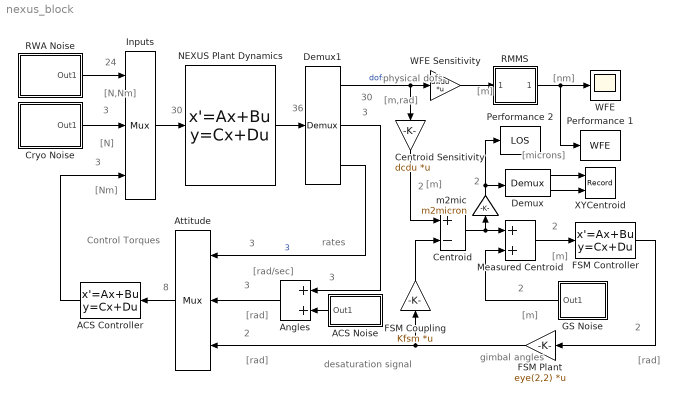
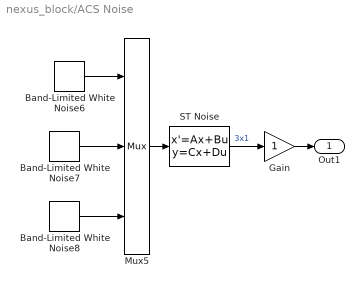
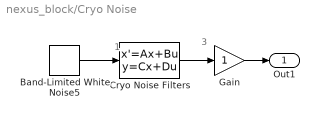
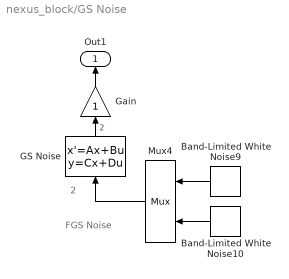
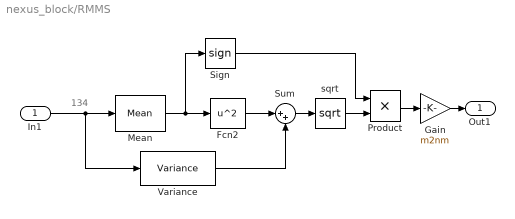
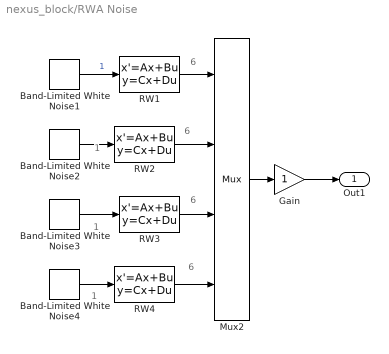
/*
 * nexus_block.cpp
 *
 * Academic License - for use in teaching, academic research, and meeting
 * course requirements at degree granting institutions only.  Not for
 * government, commercial, or other organizational use.
 *
 * Code generation for model "nexus_block".
 *
 * Model version              : 1.265
 * Simulink Coder version : 24.2 (R2024b) 21-Jun-2024
 * C++ source code generated on : Sun Mar  2 17:48:36 2025
 *
 * Target selection: grt.tlc
 * Note: GRT includes extra infrastructure and instrumentation for prototyping
 * Embedded hardware selection: 32-bit Generic
 * Emulation hardware selection:
 *    Differs from embedded hardware (MATLAB Host)
 * Code generation objectives: Unspecified
 * Validation result: Not run
 */

#include "nexus_block.h"
#include "rtwtypes.h"
#include <cmath>
#include "nexus_block_private.h"
#include "cmath"

/*
 * This function updates continuous states using the ODE4 fixed-step
 * solver algorithm
 */
void nexus_block::rt_ertODEUpdateContinuousStates(RTWSolverInfo *si )
{
  time_T t { rtsiGetT(si) };

  time_T tnew { rtsiGetSolverStopTime(si) };

  time_T h { rtsiGetStepSize(si) };

  real_T *x { rtsiGetContStates(si) };

  ODE4_IntgData *id { static_cast<ODE4_IntgData *>(rtsiGetSolverData(si)) };

  real_T *y { id->y };

  real_T *f0 { id->f[0] };

  real_T *f1 { id->f[1] };

  real_T *f2 { id->f[2] };

  real_T *f3 { id->f[3] };

  real_T temp;
  int_T i;
  int_T nXc { 240 };

  rtsiSetSimTimeStep(si,MINOR_TIME_STEP);

  /* Save the state values at time t in y, we'll use x as ynew. */
  (void) std::memcpy(y, x,
                     static_cast<uint_T>(nXc)*sizeof(real_T));

  /* Assumes that rtsiSetT and ModelOutputs are up-to-date */
  /* f0 = f(t,y) */
  rtsiSetdX(si, f0);
  nexus_block_derivatives();

  /* f1 = f(t + (h/2), y + (h/2)*f0) */
  temp = 0.5 * h;
  for (i = 0; i < nXc; i++) {
    x[i] = y[i] + (temp*f0[i]);
  }

  rtsiSetT(si, t + temp);
  rtsiSetdX(si, f1);
  this->step();
  nexus_block_derivatives();

  /* f2 = f(t + (h/2), y + (h/2)*f1) */
  for (i = 0; i < nXc; i++) {
    x[i] = y[i] + (temp*f1[i]);
  }

  rtsiSetdX(si, f2);
  this->step();
  nexus_block_derivatives();

  /* f3 = f(t + h, y + h*f2) */
  for (i = 0; i < nXc; i++) {
    x[i] = y[i] + (h*f2[i]);
  }

  rtsiSetT(si, tnew);
  rtsiSetdX(si, f3);
  this->step();
  nexus_block_derivatives();

  /* tnew = t + h
     ynew = y + (h/6)*(f0 + 2*f1 + 2*f2 + 2*f3) */
  temp = h / 6.0;
  for (i = 0; i < nXc; i++) {
    x[i] = y[i] + temp*(f0[i] + 2.0*f1[i] + 2.0*f2[i] + f3[i]);
  }

  rtsiSetSimTimeStep(si,MAJOR_TIME_STEP);
}

real_T rt_urand_Upu32_Yd_f_pw_snf(uint32_T *u)
{
  uint32_T hi;
  uint32_T lo;

  /* Uniform random number generator (random number between 0 and 1)

     #define IA      16807                      magic multiplier = 7^5
     #define IM      2147483647                 modulus = 2^31-1
     #define IQ      127773                     IM div IA
     #define IR      2836                       IM modulo IA
     #define S       4.656612875245797e-10      reciprocal of 2^31-1
     test = IA * (seed % IQ) - IR * (seed/IQ)
     seed = test < 0 ? (test + IM) : test
     return (seed*S)
   */
  lo = *u % 127773U * 16807U;
  hi = *u / 127773U * 2836U;
  if (lo < hi) {
    *u = 2147483647U - (hi - lo);
  } else {
    *u = lo - hi;
  }

  return static_cast<real_T>(*u) * 4.6566128752457969E-10;
}

real_T rt_nrand_Upu32_Yd_f_pw_snf(uint32_T *u)
{
  real_T si;
  real_T sr;
  real_T y;

  /* Normal (Gaussian) random number generator */
  do {
    sr = 2.0 * rt_urand_Upu32_Yd_f_pw_snf(u) - 1.0;
    si = 2.0 * rt_urand_Upu32_Yd_f_pw_snf(u) - 1.0;
    si = sr * sr + si * si;
  } while (si > 1.0);

  y = std::sqrt(-2.0 * std::log(si) / si) * sr;
  return y;
}

real_T rt_powd_snf(real_T u0, real_T u1)
{
  real_T y;
  if (std::isnan(u0) || std::isnan(u1)) {
    y = (rtNaN);
  } else {
    real_T tmp;
    real_T tmp_0;
    tmp = std::abs(u0);
    tmp_0 = std::abs(u1);
    if (std::isinf(u1)) {
      if (tmp == 1.0) {
        y = 1.0;
      } else if (tmp > 1.0) {
        if (u1 > 0.0) {
          y = (rtInf);
        } else {
          y = 0.0;
        }
      } else if (u1 > 0.0) {
        y = 0.0;
      } else {
        y = (rtInf);
      }
    } else if (tmp_0 == 0.0) {
      y = 1.0;
    } else if (tmp_0 == 1.0) {
      if (u1 > 0.0) {
        y = u0;
      } else {
        y = 1.0 / u0;
      }
    } else if (u1 == 2.0) {
      y = u0 * u0;
    } else if ((u1 == 0.5) && (u0 >= 0.0)) {
      y = std::sqrt(u0);
    } else if ((u0 < 0.0) && (u1 > std::floor(u1))) {
      y = (rtNaN);
    } else {
      y = std::pow(u0, u1);
    }
  }

  return y;
}

/* Model step function */
void nexus_block::step()
{
  real_T rtb_NEXUSPlantDynamics[36];
  real_T rtb_ACSController[3];
  real_T rtb_Angles[3];
  real_T rtb_CryoNoiseFilters[3];
  real_T rtb_u[2];
  real_T GSNoise_CSTATE;
  real_T STNoise_CSTATE;
  real_T rtb_Centroid_0;
  real_T rtb_FSMPlant_0;
  real_T rtb_NEXUSPlantDynamics_0;
  real_T rtb_WhiteNoise;
  int_T ci;
  int_T iy;
  int_T rtb_RW1_tmp;
  boolean_T tmp;
  if (rtmIsMajorTimeStep((&nexus_block_M))) {
    /* set solver stop time */
    if (!((&nexus_block_M)->Timing.clockTick0+1)) {
      rtsiSetSolverStopTime(&(&nexus_block_M)->solverInfo, (((&nexus_block_M)
        ->Timing.clockTickH0 + 1) * (&nexus_block_M)->Timing.stepSize0 *
        4294967296.0));
    } else {
      rtsiSetSolverStopTime(&(&nexus_block_M)->solverInfo, (((&nexus_block_M)
        ->Timing.clockTick0 + 1) * (&nexus_block_M)->Timing.stepSize0 +
        (&nexus_block_M)->Timing.clockTickH0 * (&nexus_block_M)
        ->Timing.stepSize0 * 4294967296.0));
    }
  }                                    /* end MajorTimeStep */

  /* Update absolute time of base rate at minor time step */
  if (rtmIsMinorTimeStep((&nexus_block_M))) {
    (&nexus_block_M)->Timing.t[0] = rtsiGetT(&(&nexus_block_M)->solverInfo);
  }

  /* StateSpace: '<Root>/NEXUS Plant Dynamics' */
  for (iy = 0; iy < 36; iy++) {
    rtb_NEXUSPlantDynamics_0 = 0.0;
    for (ci = 0; ci < 158; ci++) {
      rtb_NEXUSPlantDynamics_0 += nexus_block_P.Cp[ci * 36 + iy] *
        nexus_block_X.NEXUSPlantDynamics_CSTATE[ci];
    }

    rtb_NEXUSPlantDynamics[iy] = rtb_NEXUSPlantDynamics_0;
  }

  /* End of StateSpace: '<Root>/NEXUS Plant Dynamics' */
  for (iy = 0; iy < 134; iy++) {
    /* Gain: '<Root>/WFE Sensitivity' */
    rtb_NEXUSPlantDynamics_0 = 0.0;
    for (ci = 0; ci < 30; ci++) {
      rtb_NEXUSPlantDynamics_0 += nexus_block_P.dwdu[134 * ci + iy] *
        rtb_NEXUSPlantDynamics[ci];
    }

    nexus_block_B.WFESensitivity[iy] = rtb_NEXUSPlantDynamics_0;

    /* End of Gain: '<Root>/WFE Sensitivity' */
  }

  tmp = rtmIsMajorTimeStep((&nexus_block_M));
  if (tmp) {
    /* S-Function (sdspstatfcns): '<S4>/Mean' */
    nexus_block_DW.Mean_AccVal = nexus_block_B.WFESensitivity[0];
    iy = 1;

    /* S-Function (sdspstatfcns): '<S4>/Variance' */
    nexus_block_DW.Variance_AccVal = nexus_block_B.WFESensitivity[0];
    nexus_block_DW.Variance_SqData = nexus_block_B.WFESensitivity[0] *
      nexus_block_B.WFESensitivity[0];
    for (ci = 132; ci >= 0; ci--) {
      /* S-Function (sdspstatfcns): '<S4>/Mean' */
      nexus_block_DW.Mean_AccVal += nexus_block_B.WFESensitivity[133 - ci];

      /* S-Function (sdspstatfcns): '<S4>/Variance' */
      nexus_block_DW.Variance_AccVal += nexus_block_B.WFESensitivity[iy];
      nexus_block_DW.Variance_SqData += nexus_block_B.WFESensitivity[iy] *
        nexus_block_B.WFESensitivity[iy];
      iy++;
    }

    /* S-Function (sdspstatfcns): '<S4>/Mean' */
    rtb_WhiteNoise = nexus_block_DW.Mean_AccVal / 134.0;

    /* Signum: '<S4>/Sign' */
    rtb_NEXUSPlantDynamics_0 = rtb_WhiteNoise;

    /* Fcn: '<S4>/Fcn2' */
    rtb_Centroid_0 = rt_powd_snf(rtb_WhiteNoise, 2.0);

    /* S-Function (sdspstatfcns): '<S4>/Variance' */
    rtb_WhiteNoise = (nexus_block_DW.Variance_SqData -
                      nexus_block_DW.Variance_AccVal *
                      nexus_block_DW.Variance_AccVal / 134.0) / 133.0;

    /* Sum: '<S4>/Sum' incorporates:
     *  Fcn: '<S4>/Fcn2'
     */
    rtb_WhiteNoise += rtb_Centroid_0;

    /* Signum: '<S4>/Sign' */
    if (std::isnan(rtb_NEXUSPlantDynamics_0)) {
      rtb_Centroid_0 = (rtNaN);
    } else if (rtb_NEXUSPlantDynamics_0 < 0.0) {
      rtb_Centroid_0 = -1.0;
    } else {
      rtb_Centroid_0 = (rtb_NEXUSPlantDynamics_0 > 0.0);
    }

    /* Math: '<S4>/sqrt'
     *
     * About '<S4>/sqrt':
     *  Operator: sqrt
     */
    if (rtb_WhiteNoise < 0.0) {
      rtb_NEXUSPlantDynamics_0 = -std::sqrt(std::abs(rtb_WhiteNoise));
    } else {
      rtb_NEXUSPlantDynamics_0 = std::sqrt(rtb_WhiteNoise);
    }

    /* Gain: '<S4>/Gain' incorporates:
     *  Math: '<S4>/sqrt'
     *  Product: '<S4>/Product'
     *  Signum: '<S4>/Sign'
     *
     * About '<S4>/sqrt':
     *  Operator: sqrt
     */
    rtb_WhiteNoise = rtb_Centroid_0 * rtb_NEXUSPlantDynamics_0 *
      nexus_block_P.m2nm;

    /* ToWorkspace: '<Root>/Performance 1' */
    if (rtmIsMajorTimeStep((&nexus_block_M))) {
      rt_UpdateLogVar((LogVar *)(LogVar*)
                      (nexus_block_DW.Performance1_PWORK.LoggedData),
                      &rtb_WhiteNoise, 0);
    }
  }

  /* StateSpace: '<Root>/FSM Controller' */
  for (iy = 0; iy < 2; iy++) {
    rtb_NEXUSPlantDynamics_0 = 0.0;
    for (ci = 0; ci < 6; ci++) {
      rtb_NEXUSPlantDynamics_0 += -nexus_block_P.Ccf[(ci << 1) + iy] *
        nexus_block_X.FSMController_CSTATE[ci];
    }

    rtb_u[iy] = rtb_NEXUSPlantDynamics_0;
  }

  /* End of StateSpace: '<Root>/FSM Controller' */

  /* Gain: '<Root>/FSM Plant' */
  rtb_NEXUSPlantDynamics_0 = nexus_block_P.FSMPlant_Gain[0] * rtb_u[0] + rtb_u[1]
    * nexus_block_P.FSMPlant_Gain[2];
  rtb_FSMPlant_0 = rtb_u[0] * nexus_block_P.FSMPlant_Gain[1] + rtb_u[1] *
    nexus_block_P.FSMPlant_Gain[3];
  for (ci = 0; ci < 2; ci++) {
    /* Sum: '<Root>/Centroid' incorporates:
     *  Gain: '<Root>/Centroid Sensitivity'
     *  Gain: '<Root>/FSM Coupling'
     *  Gain: '<Root>/FSM Plant'
     */
    rtb_Centroid_0 = 0.0;
    for (iy = 0; iy < 30; iy++) {
      rtb_Centroid_0 += nexus_block_P.dcdu[(iy << 1) + ci] *
        rtb_NEXUSPlantDynamics[iy];
    }

    rtb_Centroid_0 -= nexus_block_P.Kfsm[ci + 2] * rtb_FSMPlant_0 +
      nexus_block_P.Kfsm[ci] * rtb_NEXUSPlantDynamics_0;
    rtb_u[ci] = rtb_Centroid_0;

    /* End of Sum: '<Root>/Centroid' */

    /* Gain: '<Root>/m2mic' */
    nexus_block_B.m2mic[ci] = nexus_block_P.m2micron * rtb_Centroid_0;
  }

  if (tmp) {
    /* ToWorkspace: '<Root>/Performance 2' */
    if (rtmIsMajorTimeStep((&nexus_block_M))) {
      rt_UpdateLogVar((LogVar *)(LogVar*)
                      (nexus_block_DW.Performance2_PWORK.LoggedData),
                      &nexus_block_B.m2mic[0], 0);
    }
  }

  /* StateSpace: '<Root>/ACS Controller' */
  for (iy = 0; iy < 3; iy++) {
    rtb_WhiteNoise = 0.0;
    for (ci = 0; ci < 9; ci++) {
      rtb_WhiteNoise += nexus_block_P.Cca[ci * 3 + iy] *
        nexus_block_X.ACSController_CSTATE[ci];
    }

    rtb_ACSController[iy] = rtb_WhiteNoise;
  }

  /* End of StateSpace: '<Root>/ACS Controller' */
  if (tmp) {
    /* RandomNumber: '<S6>/White Noise' */
    rtb_WhiteNoise = nexus_block_DW.NextOutput;

    /* Gain: '<S6>/Output' */
    nexus_block_B.Output = std::sqrt(nexus_block_P.BandLimitedWhiteNoise6_Cov) /
      0.031622776601683791 * rtb_WhiteNoise;

    /* RandomNumber: '<S7>/White Noise' */
    rtb_WhiteNoise = nexus_block_DW.NextOutput_j;

    /* Gain: '<S7>/Output' */
    nexus_block_B.Output_l = std::sqrt(nexus_block_P.BandLimitedWhiteNoise7_Cov)
      / 0.031622776601683791 * rtb_WhiteNoise;

    /* RandomNumber: '<S8>/White Noise' */
    rtb_WhiteNoise = nexus_block_DW.NextOutput_l;

    /* Gain: '<S8>/Output' */
    nexus_block_B.Output_k = std::sqrt(nexus_block_P.BandLimitedWhiteNoise8_Cov)
      / 0.031622776601683791 * rtb_WhiteNoise;
  }

  /* StateSpace: '<S1>/ST Noise' */
  rtb_WhiteNoise = nexus_block_X.STNoise_CSTATE[1];
  rtb_Centroid_0 = nexus_block_X.STNoise_CSTATE[0];
  STNoise_CSTATE = nexus_block_X.STNoise_CSTATE[2];
  for (iy = 0; iy < 3; iy++) {
    rtb_Angles[iy] = (nexus_block_P.Cds[iy + 3] * rtb_WhiteNoise +
                      nexus_block_P.Cds[iy] * rtb_Centroid_0) +
      nexus_block_P.Cds[iy + 6] * STNoise_CSTATE;
  }

  /* End of StateSpace: '<S1>/ST Noise' */

  /* SignalConversion generated from: '<S1>/ST Noise' */
  nexus_block_B.TmpSignalConversionAtSTNoiseInp[0] = nexus_block_B.Output;
  nexus_block_B.TmpSignalConversionAtSTNoiseInp[1] = nexus_block_B.Output_l;
  nexus_block_B.TmpSignalConversionAtSTNoiseInp[2] = nexus_block_B.Output_k;
  if (tmp) {
    /* RandomNumber: '<S9>/White Noise' */
    rtb_WhiteNoise = nexus_block_DW.NextOutput_m;

    /* Gain: '<S9>/Output' */
    nexus_block_B.Output_g = std::sqrt(nexus_block_P.BandLimitedWhiteNoise5_Cov)
      / 0.031622776601683791 * rtb_WhiteNoise;
  }

  /* StateSpace: '<S2>/Cryo Noise Filters' */
  for (iy = 0; iy < 3; iy++) {
    rtb_WhiteNoise = 0.0;
    for (ci = 0; ci < 12; ci++) {
      rtb_WhiteNoise += nexus_block_P.Cdc[ci * 3 + iy] *
        nexus_block_X.CryoNoiseFilters_CSTATE[ci];
    }

    rtb_CryoNoiseFilters[iy] = rtb_WhiteNoise;
  }

  /* End of StateSpace: '<S2>/Cryo Noise Filters' */
  if (tmp) {
    /* RandomNumber: '<S10>/White Noise' */
    rtb_WhiteNoise = nexus_block_DW.NextOutput_i;

    /* Gain: '<S10>/Output' */
    nexus_block_B.Output_j = std::sqrt(nexus_block_P.BandLimitedWhiteNoise10_Cov)
      / 0.031622776601683791 * rtb_WhiteNoise;

    /* RandomNumber: '<S11>/White Noise' */
    rtb_WhiteNoise = nexus_block_DW.NextOutput_h;

    /* Gain: '<S11>/Output' */
    nexus_block_B.Output_d = std::sqrt(nexus_block_P.BandLimitedWhiteNoise9_Cov)
      / 0.031622776601683791 * rtb_WhiteNoise;
  }

  /* SignalConversion generated from: '<S3>/GS  Noise' */
  nexus_block_B.TmpSignalConversionAtGSNoiseInp[0] = nexus_block_B.Output_d;
  nexus_block_B.TmpSignalConversionAtGSNoiseInp[1] = nexus_block_B.Output_j;

  /* StateSpace: '<S3>/GS  Noise' */
  rtb_WhiteNoise = nexus_block_X.GSNoise_CSTATE[1];
  rtb_Centroid_0 = nexus_block_X.GSNoise_CSTATE[0];
  STNoise_CSTATE = nexus_block_X.GSNoise_CSTATE[2];
  GSNoise_CSTATE = nexus_block_X.GSNoise_CSTATE[3];
  for (iy = 0; iy < 2; iy++) {
    /* Sum: '<Root>/Measured Centroid' incorporates:
     *  Gain: '<S3>/Gain'
     */
    nexus_block_B.MeasuredCentroid[iy] = (((nexus_block_P.Cdg[iy + 2] *
      nexus_block_P.psc * rtb_WhiteNoise + nexus_block_P.psc *
      nexus_block_P.Cdg[iy] * rtb_Centroid_0) + nexus_block_P.Cdg[iy + 4] *
      nexus_block_P.psc * STNoise_CSTATE) + nexus_block_P.Cdg[iy + 6] *
      nexus_block_P.psc * GSNoise_CSTATE) * nexus_block_P.Gain_Gain_n + rtb_u[iy];
  }

  /* End of StateSpace: '<S3>/GS  Noise' */
  if (tmp) {
    /* RandomNumber: '<S12>/White Noise' */
    rtb_WhiteNoise = nexus_block_DW.NextOutput_k;

    /* Gain: '<S12>/Output' */
    nexus_block_B.Output_f = std::sqrt(nexus_block_P.BandLimitedWhiteNoise1_Cov)
      / 0.031622776601683791 * rtb_WhiteNoise;

    /* RandomNumber: '<S13>/White Noise' */
    rtb_WhiteNoise = nexus_block_DW.NextOutput_g;

    /* Gain: '<S13>/Output' */
    nexus_block_B.Output_d5 = std::sqrt(nexus_block_P.BandLimitedWhiteNoise2_Cov)
      / 0.031622776601683791 * rtb_WhiteNoise;

    /* RandomNumber: '<S14>/White Noise' */
    rtb_WhiteNoise = nexus_block_DW.NextOutput_gq;

    /* Gain: '<S14>/Output' */
    nexus_block_B.Output_g0 = std::sqrt(nexus_block_P.BandLimitedWhiteNoise3_Cov)
      / 0.031622776601683791 * rtb_WhiteNoise;

    /* RandomNumber: '<S15>/White Noise' */
    rtb_WhiteNoise = nexus_block_DW.NextOutput_ig;

    /* Gain: '<S15>/Output' */
    nexus_block_B.Output_jf = std::sqrt(nexus_block_P.BandLimitedWhiteNoise4_Cov)
      / 0.031622776601683791 * rtb_WhiteNoise;
  }

  /* SignalConversion generated from: '<Root>/ACS Controller' incorporates:
   *  Gain: '<Root>/FSM Plant'
   *  Gain: '<S1>/Gain'
   *  Sum: '<Root>/Angles'
   */
  nexus_block_B.TmpSignalConversionAtACSControl[0] = rtb_NEXUSPlantDynamics[33];
  nexus_block_B.TmpSignalConversionAtACSControl[3] = nexus_block_P.Gain_Gain *
    rtb_Angles[0] + rtb_NEXUSPlantDynamics[30];
  nexus_block_B.TmpSignalConversionAtACSControl[1] = rtb_NEXUSPlantDynamics[34];
  nexus_block_B.TmpSignalConversionAtACSControl[4] = nexus_block_P.Gain_Gain *
    rtb_Angles[1] + rtb_NEXUSPlantDynamics[31];
  nexus_block_B.TmpSignalConversionAtACSControl[2] = rtb_NEXUSPlantDynamics[35];
  nexus_block_B.TmpSignalConversionAtACSControl[5] = nexus_block_P.Gain_Gain *
    rtb_Angles[2] + rtb_NEXUSPlantDynamics[32];
  nexus_block_B.TmpSignalConversionAtACSControl[6] = rtb_NEXUSPlantDynamics_0;
  nexus_block_B.TmpSignalConversionAtACSControl[7] = rtb_FSMPlant_0;
  for (iy = 0; iy < 6; iy++) {
    /* StateSpace: '<S5>/RW1' */
    rtb_NEXUSPlantDynamics_0 = 0.0;

    /* StateSpace: '<S5>/RW2' */
    rtb_FSMPlant_0 = 0.0;

    /* StateSpace: '<S5>/RW3' */
    rtb_WhiteNoise = 0.0;

    /* StateSpace: '<S5>/RW4' */
    rtb_Centroid_0 = 0.0;
    for (ci = 0; ci < 12; ci++) {
      /* StateSpace: '<S5>/RW1' incorporates:
       *  StateSpace: '<S5>/RW2'
       *  StateSpace: '<S5>/RW3'
       *  StateSpace: '<S5>/RW4'
       */
      rtb_RW1_tmp = ci * 6 + iy;
      rtb_NEXUSPlantDynamics_0 += nexus_block_P.RW1_C[rtb_RW1_tmp] *
        nexus_block_X.RW1_CSTATE[ci];

      /* StateSpace: '<S5>/RW2' */
      rtb_FSMPlant_0 += nexus_block_P.RW2_C[rtb_RW1_tmp] *
        nexus_block_X.RW2_CSTATE[ci];

      /* StateSpace: '<S5>/RW3' */
      rtb_WhiteNoise += nexus_block_P.RW3_C[rtb_RW1_tmp] *
        nexus_block_X.RW3_CSTATE[ci];

      /* StateSpace: '<S5>/RW4' */
      rtb_Centroid_0 += nexus_block_P.RW4_C[rtb_RW1_tmp] *
        nexus_block_X.RW4_CSTATE[ci];
    }

    /* SignalConversion generated from: '<Root>/NEXUS Plant Dynamics' incorporates:
     *  Gain: '<S5>/Gain'
     *  StateSpace: '<S5>/RW1'
     *  StateSpace: '<S5>/RW2'
     *  StateSpace: '<S5>/RW3'
     *  StateSpace: '<S5>/RW4'
     */
    nexus_block_B.TmpSignalConversionAtNEXUSPlant[iy] =
      nexus_block_P.Gain_Gain_o * rtb_NEXUSPlantDynamics_0;
    nexus_block_B.TmpSignalConversionAtNEXUSPlant[iy + 6] =
      nexus_block_P.Gain_Gain_o * rtb_FSMPlant_0;
    nexus_block_B.TmpSignalConversionAtNEXUSPlant[iy + 12] =
      nexus_block_P.Gain_Gain_o * rtb_WhiteNoise;
    nexus_block_B.TmpSignalConversionAtNEXUSPlant[iy + 18] =
      nexus_block_P.Gain_Gain_o * rtb_Centroid_0;
  }

  /* SignalConversion generated from: '<Root>/NEXUS Plant Dynamics' incorporates:
   *  Gain: '<S2>/Gain'
   */
  nexus_block_B.TmpSignalConversionAtNEXUSPlant[24] = nexus_block_P.Gain_Gain_i *
    rtb_CryoNoiseFilters[0];
  nexus_block_B.TmpSignalConversionAtNEXUSPlant[27] = rtb_ACSController[0];
  nexus_block_B.TmpSignalConversionAtNEXUSPlant[25] = nexus_block_P.Gain_Gain_i *
    rtb_CryoNoiseFilters[1];
  nexus_block_B.TmpSignalConversionAtNEXUSPlant[28] = rtb_ACSController[1];
  nexus_block_B.TmpSignalConversionAtNEXUSPlant[26] = nexus_block_P.Gain_Gain_i *
    rtb_CryoNoiseFilters[2];
  nexus_block_B.TmpSignalConversionAtNEXUSPlant[29] = rtb_ACSController[2];
  if (rtmIsMajorTimeStep((&nexus_block_M))) {
    /* Matfile logging */
    rt_UpdateTXYLogVars((&nexus_block_M)->rtwLogInfo, ((&nexus_block_M)
      ->Timing.t));
  }                                    /* end MajorTimeStep */

  if (rtmIsMajorTimeStep((&nexus_block_M))) {
    if (rtmIsMajorTimeStep((&nexus_block_M))) {
      /* Update for RandomNumber: '<S6>/White Noise' */
      nexus_block_DW.NextOutput = rt_nrand_Upu32_Yd_f_pw_snf
        (&nexus_block_DW.RandSeed) * nexus_block_P.WhiteNoise_StdDev +
        nexus_block_P.WhiteNoise_Mean;

      /* Update for RandomNumber: '<S7>/White Noise' */
      nexus_block_DW.NextOutput_j = rt_nrand_Upu32_Yd_f_pw_snf
        (&nexus_block_DW.RandSeed_a) * nexus_block_P.WhiteNoise_StdDev_k +
        nexus_block_P.WhiteNoise_Mean_p;

      /* Update for RandomNumber: '<S8>/White Noise' */
      nexus_block_DW.NextOutput_l = rt_nrand_Upu32_Yd_f_pw_snf
        (&nexus_block_DW.RandSeed_e) * nexus_block_P.WhiteNoise_StdDev_b +
        nexus_block_P.WhiteNoise_Mean_o;

      /* Update for RandomNumber: '<S9>/White Noise' */
      nexus_block_DW.NextOutput_m = rt_nrand_Upu32_Yd_f_pw_snf
        (&nexus_block_DW.RandSeed_o) * nexus_block_P.WhiteNoise_StdDev_e +
        nexus_block_P.WhiteNoise_Mean_g;

      /* Update for RandomNumber: '<S10>/White Noise' */
      nexus_block_DW.NextOutput_i = rt_nrand_Upu32_Yd_f_pw_snf
        (&nexus_block_DW.RandSeed_c) * nexus_block_P.WhiteNoise_StdDev_f +
        nexus_block_P.WhiteNoise_Mean_c;

      /* Update for RandomNumber: '<S11>/White Noise' */
      nexus_block_DW.NextOutput_h = rt_nrand_Upu32_Yd_f_pw_snf
        (&nexus_block_DW.RandSeed_d) * nexus_block_P.WhiteNoise_StdDev_n +
        nexus_block_P.WhiteNoise_Mean_p1;

      /* Update for RandomNumber: '<S12>/White Noise' */
      nexus_block_DW.NextOutput_k = rt_nrand_Upu32_Yd_f_pw_snf
        (&nexus_block_DW.RandSeed_f) * nexus_block_P.WhiteNoise_StdDev_eg +
        nexus_block_P.WhiteNoise_Mean_k;

      /* Update for RandomNumber: '<S13>/White Noise' */
      nexus_block_DW.NextOutput_g = rt_nrand_Upu32_Yd_f_pw_snf
        (&nexus_block_DW.RandSeed_eu) * nexus_block_P.WhiteNoise_StdDev_g +
        nexus_block_P.WhiteNoise_Mean_l;

      /* Update for RandomNumber: '<S14>/White Noise' */
      nexus_block_DW.NextOutput_gq = rt_nrand_Upu32_Yd_f_pw_snf
        (&nexus_block_DW.RandSeed_k) * nexus_block_P.WhiteNoise_StdDev_bq +
        nexus_block_P.WhiteNoise_Mean_h;

      /* Update for RandomNumber: '<S15>/White Noise' */
      nexus_block_DW.NextOutput_ig = rt_nrand_Upu32_Yd_f_pw_snf
        (&nexus_block_DW.RandSeed_p) * nexus_block_P.WhiteNoise_StdDev_p +
        nexus_block_P.WhiteNoise_Mean_l3;
    }
  }                                    /* end MajorTimeStep */

  if (rtmIsMajorTimeStep((&nexus_block_M))) {
    /* signal main to stop simulation */
    {                                  /* Sample time: [0.0s, 0.0s] */
      if ((rtmGetTFinal((&nexus_block_M))!=-1) &&
          !((rtmGetTFinal((&nexus_block_M))-((((&nexus_block_M)
               ->Timing.clockTick1+(&nexus_block_M)->Timing.clockTickH1*
               4294967296.0)) * 0.001)) > ((((&nexus_block_M)->Timing.clockTick1
              +(&nexus_block_M)->Timing.clockTickH1* 4294967296.0)) * 0.001) *
            (DBL_EPSILON))) {
        rtmSetErrorStatus((&nexus_block_M), "Simulation finished");
      }
    }

    rt_ertODEUpdateContinuousStates(&(&nexus_block_M)->solverInfo);

    /* Update absolute time for base rate */
    /* The "clockTick0" counts the number of times the code of this task has
     * been executed. The absolute time is the multiplication of "clockTick0"
     * and "Timing.stepSize0". Size of "clockTick0" ensures timer will not
     * overflow during the application lifespan selected.
     * Timer of this task consists of two 32 bit unsigned integers.
     * The two integers represent the low bits Timing.clockTick0 and the high bits
     * Timing.clockTickH0. When the low bit overflows to 0, the high bits increment.
     */
    if (!(++(&nexus_block_M)->Timing.clockTick0)) {
      ++(&nexus_block_M)->Timing.clockTickH0;
    }

    (&nexus_block_M)->Timing.t[0] = rtsiGetSolverStopTime(&(&nexus_block_M)
      ->solverInfo);

    {
      /* Update absolute timer for sample time: [0.001s, 0.0s] */
      /* The "clockTick1" counts the number of times the code of this task has
       * been executed. The resolution of this integer timer is 0.001, which is the step size
       * of the task. Size of "clockTick1" ensures timer will not overflow during the
       * application lifespan selected.
       * Timer of this task consists of two 32 bit unsigned integers.
       * The two integers represent the low bits Timing.clockTick1 and the high bits
       * Timing.clockTickH1. When the low bit overflows to 0, the high bits increment.
       */
      (&nexus_block_M)->Timing.clockTick1++;
      if (!(&nexus_block_M)->Timing.clockTick1) {
        (&nexus_block_M)->Timing.clockTickH1++;
      }
    }
  }                                    /* end MajorTimeStep */
}
